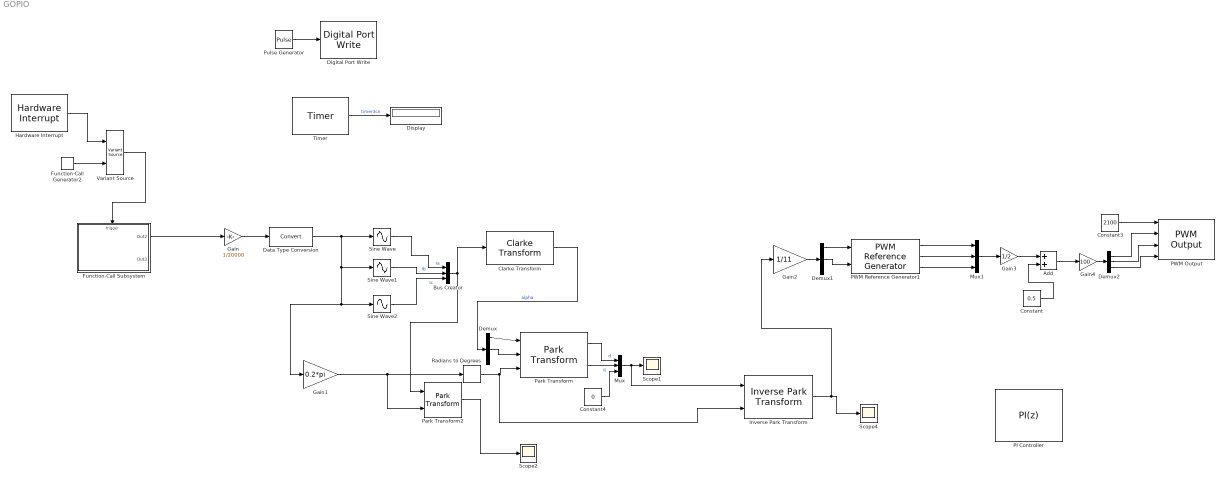
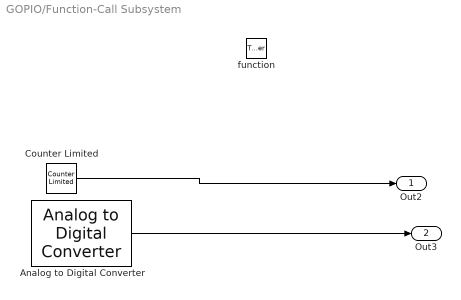
/*
 * File: GOPIO.c
 *
 * Code generated for Simulink model 'GOPIO'.
 *
 * Model version                  : 1.19
 * Simulink Coder version         : 24.1 (R2024a) 19-Nov-2023
 * C/C++ source code generated on : Fri Sep 27 23:32:46 2024
 *
 * Target selection: ert.tlc
 * Embedded hardware selection: ARM Compatible->ARM Cortex-M
 * Code generation objectives: Unspecified
 * Validation result: Not run
 */

#include "GOPIO.h"
#include "rtwtypes.h"
#include "GOPIO_types.h"
#include "GOPIO_private.h"
#include <math.h>
#include "rt_nonfinite.h"
#include "stm_adc_ll.h"
#include <stddef.h>
#include "stm_timer_ll.h"
#include "xcp.h"
#include "ext_mode.h"

extmodeSimulationTime_T currentTime = (extmodeSimulationTime_T) 0;

/* Block signals (default storage) */
B_GOPIO_T GOPIO_B;

/* Block states (default storage) */
DW_GOPIO_T GOPIO_DW;

/* Real-time model */
static RT_MODEL_GOPIO_T GOPIO_M_;
RT_MODEL_GOPIO_T *const GOPIO_M = &GOPIO_M_;

/* Forward declaration for local functions */
static void GOPIO_SystemCore_setup(stm32cube_blocks_AnalogInput__T *obj);

/* Forward declaration for local functions */
static void GOPIO_PWMOutput_setupImpl(stm32cube_blocks_PWMOutput_GO_T *obj);
static void GOPIO_SystemCore_setup_b(stm32cube_blocks_TimerBlock_G_T *obj);
static void GOPIO_SystemCore_setup(stm32cube_blocks_AnalogInput__T *obj)
{
  ADC_Type_T adcStructLoc;
  obj->isSetupComplete = false;

  /* Start for MATLABSystem: '<S18>/Analog to Digital Converter' */
  obj->isInitialized = 1;
  adcStructLoc.InternalBufferPtr = (void *)(NULL);

  /* Start for MATLABSystem: '<S18>/Analog to Digital Converter' */
  adcStructLoc.RegularNoOfConversion = 0U;
  adcStructLoc.peripheralPtr = ADC1;
  adcStructLoc.dmaPeripheralPtr = NULL;
  adcStructLoc.dmastream = 0;
  adcStructLoc.DataTransferMode = ADC_DR_TRANSFER;
  adcStructLoc.DmaTransferMode = ADC_DMA_TRANSFER_LIMITED;
  adcStructLoc.InternalBufferSize = 2U;
  adcStructLoc.InjectedNoOfConversion = 2U;
  obj->ADCHandle = ADC_Handle_Init(&adcStructLoc, ADC_INTERRUPT_MODE, 0,
    ADC_READ, LL_ADC_INJ_SEQ_SCAN_ENABLE_2RANKS);
  enableADC(obj->ADCHandle);
  startADCConversionForExternalTrigger(obj->ADCHandle, 0);
  obj->isSetupComplete = true;
}

/*
 * Output and update for action system:
 *    '<S26>/If Action Subsystem'
 *    '<S97>/If Action Subsystem'
 */
void GOPIO_IfActionSubsystem(real_T rtu_In1, real_T *rty_Out1)
{
  real_T tmp;

  /* DataTypeConversion: '<S28>/Convert_uint16' */
  tmp = floor(rtu_In1);
  if (rtIsNaN(tmp) || rtIsInf(tmp)) {
    tmp = 0.0;
  } else {
    tmp = fmod(tmp, 65536.0);
  }

  /* Sum: '<S28>/Sum' incorporates:
   *  DataTypeConversion: '<S28>/Convert_back'
   *  DataTypeConversion: '<S28>/Convert_uint16'
   */
  *rty_Out1 = rtu_In1 - (real_T)(tmp < 0.0 ? (int32_T)(int16_T)-(int16_T)
    (uint16_T)-tmp : (int32_T)(int16_T)(uint16_T)tmp);
}

/*
 * Output and update for action system:
 *    '<S26>/If Action Subsystem1'
 *    '<S97>/If Action Subsystem1'
 */
void GOPIO_IfActionSubsystem1(real_T rtu_In1, real_T *rty_Out1)
{
  real_T tmp;

  /* DataTypeConversion: '<S29>/Convert_uint16' */
  tmp = trunc(rtu_In1);
  if (rtIsNaN(tmp) || rtIsInf(tmp)) {
    tmp = 0.0;
  } else {
    tmp = fmod(tmp, 65536.0);
  }

  /* Sum: '<S29>/Sum' incorporates:
   *  DataTypeConversion: '<S29>/Convert_back'
   *  DataTypeConversion: '<S29>/Convert_uint16'
   */
  *rty_Out1 = rtu_In1 - (real_T)(tmp < 0.0 ? (int32_T)(int16_T)-(int16_T)
    (uint16_T)-tmp : (int32_T)(int16_T)(uint16_T)tmp);
}

real_T rt_roundd_snf(real_T u)
{
  real_T y;
  if (fabs(u) < 4.503599627370496E+15) {
    if (u >= 0.5) {
      y = floor(u + 0.5);
    } else if (u > -0.5) {
      y = u * 0.0;
    } else {
      y = ceil(u - 0.5);
    }
  } else {
    y = u;
  }

  return y;
}

static void GOPIO_PWMOutput_setupImpl(stm32cube_blocks_PWMOutput_GO_T *obj)
{
  TIM_Type_T b;
  boolean_T isSlaveModeTriggerEnabled;

  /* Start for MATLABSystem: '<S85>/PWM Output' */
  b.PeripheralPtr = TIM1;
  b.isCenterAlignedMode = false;

  /* Start for MATLABSystem: '<S85>/PWM Output' */
  b.repetitionCounter = 0U;
  obj->TimerHandle = Timer_Handle_Init(&b);
  enableTimerInterrupts(obj->TimerHandle, 0);
  enableTimerChannel1(obj->TimerHandle, ENABLE_CH_CHN);
  enableTimerChannel2(obj->TimerHandle, ENABLE_CH_CHN);
  enableTimerChannel3(obj->TimerHandle, ENABLE_CH_CHN);
  isSlaveModeTriggerEnabled = isSlaveTriggerModeEnabled(obj->TimerHandle);
  if (!isSlaveModeTriggerEnabled) {
    /* Start for MATLABSystem: '<S85>/PWM Output' */
    enableCounter(obj->TimerHandle, true);
  }
}

static void GOPIO_SystemCore_setup_b(stm32cube_blocks_TimerBlock_G_T *obj)
{
  TIM_Type_T b;
  boolean_T isSlaveModeTriggerEnabled;

  /* Start for MATLABSystem: '<Root>/Timer' */
  obj->isInitialized = 1;
  b.PeripheralPtr = TIM3;
  b.isCenterAlignedMode = false;

  /* Start for MATLABSystem: '<Root>/Timer' */
  b.repetitionCounter = 0U;
  obj->TimerHandle = Timer_Handle_Init(&b);
  enableTimerInterrupts(obj->TimerHandle, 0);
  isSlaveModeTriggerEnabled = isSlaveTriggerModeEnabled(obj->TimerHandle);
  if (!isSlaveModeTriggerEnabled) {
    /* Start for MATLABSystem: '<Root>/Timer' */
    enableCounter(obj->TimerHandle, false);
  }

  obj->isSetupComplete = true;
}

/* Model step function */
void GOPIO_step(void)
{
  real_T rtb_Add1;
  real_T rtb_Min;
  real_T rtb_Sum4;
  real_T rtb_Sum6_tmp;
  real_T rtb_convert_pu;
  int32_T c;
  uint32_T rtb_TmpRTBAtGainInport1;
  uint16_T rtb_Get_Integer;
  uint16_T rtb_Get_Integer_n;

  /* Reset subsysRan breadcrumbs */
  srClearBC(GOPIO_DW.IfActionSubsystem.IfActionSubsystem_SubsysRanBC);

  /* Reset subsysRan breadcrumbs */
  srClearBC(GOPIO_DW.IfActionSubsystem1.IfActionSubsystem1_SubsysRanBC);

  /* RateTransition generated from: '<Root>/Gain' */
  rtb_TmpRTBAtGainInport1 = GOPIO_B.Output;

  /* DataTypeConversion: '<Root>/Data Type Conversion' incorporates:
   *  Gain: '<Root>/Gain'
   */
  rtb_Sum4 = (real_T)((uint64_T)GOPIO_P.Gain_Gain_o * rtb_TmpRTBAtGainInport1) *
    1.4210854715202004E-14;

  /* Gain: '<Root>/Gain1' incorporates:
   *  DataTypeConversion: '<Root>/Data Type Conversion'
   */
  GOPIO_B.Gain1_m = rtb_Sum4 * GOPIO_P.Gain1_Gain;

  /* Gain: '<S11>/Gain' */
  rtb_Min = GOPIO_P.Gain_Gain * GOPIO_B.Gain1_m;

  /* Gain: '<S26>/convert_pu' */
  rtb_convert_pu = GOPIO_P.convert_pu_Gain * rtb_Min;

  /* If: '<S26>/If' incorporates:
   *  Constant: '<S27>/Constant'
   *  RelationalOperator: '<S27>/Compare'
   */
  if (rtb_convert_pu < GOPIO_P.Constant_Value) {
    /* Outputs for IfAction SubSystem: '<S26>/If Action Subsystem' incorporates:
     *  ActionPort: '<S28>/Action Port'
     */
    GOPIO_IfActionSubsystem(rtb_convert_pu, &rtb_Add1);

    /* End of Outputs for SubSystem: '<S26>/If Action Subsystem' */
  } else {
    /* Outputs for IfAction SubSystem: '<S26>/If Action Subsystem1' incorporates:
     *  ActionPort: '<S29>/Action Port'
     */
    GOPIO_IfActionSubsystem1(rtb_convert_pu, &rtb_Add1);

    /* End of Outputs for SubSystem: '<S26>/If Action Subsystem1' */
  }

  /* End of If: '<S26>/If' */

  /* Gain: '<S23>/indexing' */
  rtb_Add1 *= GOPIO_P.indexing_Gain;

  /* DataTypeConversion: '<S23>/Get_Integer' */
  rtb_convert_pu = trunc(rtb_Add1);
  if (rtIsNaN(rtb_convert_pu) || rtIsInf(rtb_convert_pu)) {
    rtb_convert_pu = 0.0;
  } else {
    rtb_convert_pu = fmod(rtb_convert_pu, 65536.0);
  }

  rtb_Get_Integer = (uint16_T)(rtb_convert_pu < 0.0 ? (int32_T)(uint16_T)
    -(int16_T)(uint16_T)-rtb_convert_pu : (int32_T)(uint16_T)rtb_convert_pu);

  /* End of DataTypeConversion: '<S23>/Get_Integer' */

  /* Gain: '<S97>/convert_pu' */
  rtb_convert_pu = GOPIO_P.convert_pu_Gain_n * rtb_Min;

  /* If: '<S97>/If' incorporates:
   *  Constant: '<S98>/Constant'
   *  RelationalOperator: '<S98>/Compare'
   */
  if (rtb_convert_pu < GOPIO_P.Constant_Value_d) {
    /* Outputs for IfAction SubSystem: '<S97>/If Action Subsystem' incorporates:
     *  ActionPort: '<S99>/Action Port'
     */
    GOPIO_IfActionSubsystem(rtb_convert_pu, &rtb_Min);

    /* End of Outputs for SubSystem: '<S97>/If Action Subsystem' */
  } else {
    /* Outputs for IfAction SubSystem: '<S97>/If Action Subsystem1' incorporates:
     *  ActionPort: '<S100>/Action Port'
     */
    GOPIO_IfActionSubsystem1(rtb_convert_pu, &rtb_Min);

    /* End of Outputs for SubSystem: '<S97>/If Action Subsystem1' */
  }

  /* End of If: '<S97>/If' */

  /* Gain: '<S95>/indexing' */
  rtb_Min *= GOPIO_P.indexing_Gain_c;

  /* DataTypeConversion: '<S95>/Get_Integer' */
  rtb_convert_pu = trunc(rtb_Min);
  if (rtIsNaN(rtb_convert_pu) || rtIsInf(rtb_convert_pu)) {
    rtb_convert_pu = 0.0;
  } else {
    rtb_convert_pu = fmod(rtb_convert_pu, 65536.0);
  }

  rtb_Get_Integer_n = (uint16_T)(rtb_convert_pu < 0.0 ? (int32_T)(uint16_T)
    -(int16_T)(uint16_T)-rtb_convert_pu : (int32_T)(uint16_T)rtb_convert_pu);

  /* End of DataTypeConversion: '<S95>/Get_Integer' */

  /* Sin: '<Root>/Sine Wave' */
  GOPIO_B.Ia = sin(rtb_Sum4 * GOPIO_P.SineWave_Freq + GOPIO_P.SineWave_Phase) *
    GOPIO_P.SineWave_Amp + GOPIO_P.SineWave_Bias;

  /* Sin: '<Root>/Sine Wave1' */
  GOPIO_B.Ib = sin(rtb_Sum4 * GOPIO_P.SineWave1_Freq + GOPIO_P.SineWave1_Phase) *
    GOPIO_P.SineWave1_Amp + GOPIO_P.SineWave1_Bias;

  /* Sin: '<Root>/Sine Wave2' */
  GOPIO_B.Ic = sin(rtb_Sum4 * GOPIO_P.SineWave2_Freq + GOPIO_P.SineWave2_Phase) *
    GOPIO_P.SineWave2_Amp + GOPIO_P.SineWave2_Bias;

  /* Gain: '<S10>/Gain1' incorporates:
   *  Fcn: '<S10>/d'
   *  Fcn: '<S10>/q'
   */
  GOPIO_B.Gain1[0] = ((sin(GOPIO_B.Gain1_m - 2.0943951023931953) * GOPIO_B.Ib +
                       sin(GOPIO_B.Gain1_m) * GOPIO_B.Ia) + sin(GOPIO_B.Gain1_m
    + 2.0943951023931953) * GOPIO_B.Ic) * GOPIO_P.Gain1_Gain_o;
  GOPIO_B.Gain1[1] = ((cos(GOPIO_B.Gain1_m - 2.0943951023931953) * GOPIO_B.Ib +
                       cos(GOPIO_B.Gain1_m) * GOPIO_B.Ia) + cos(GOPIO_B.Gain1_m
    + 2.0943951023931953) * GOPIO_B.Ic) * GOPIO_P.Gain1_Gain_o;

  /* Fcn: '<S10>/0' incorporates:
   *  Sum: '<S12>/Sum'
   */
  rtb_convert_pu = (GOPIO_B.Ia + GOPIO_B.Ib) + GOPIO_B.Ic;

  /* Gain: '<S10>/Gain1' incorporates:
   *  Fcn: '<S10>/0'
   */
  GOPIO_B.Gain1[2] = rtb_convert_pu * 0.5 * GOPIO_P.Gain1_Gain_o;

  /* Gain: '<S12>/Kalphabeta0' incorporates:
   *  Gain: '<S12>/one_by_3'
   *  Gain: '<S12>/one_by_sqrt3_'
   *  Sum: '<S12>/Sum1'
   *  Sum: '<S12>/Sum2'
   */
  rtb_convert_pu = (GOPIO_B.Ia - rtb_convert_pu * GOPIO_P.one_by_3_Gain) *
    GOPIO_P.Kalphabeta0_Gain[0];
  GOPIO_B.Gain1_m = (GOPIO_B.Ib - GOPIO_B.Ic) * GOPIO_P.one_by_sqrt3_Gain *
    GOPIO_P.Kalphabeta0_Gain[1];

  /* Sum: '<S95>/Sum2' incorporates:
   *  DataTypeConversion: '<S95>/Data Type Conversion1'
   */
  rtb_Min -= (real_T)rtb_Get_Integer_n;

  /* Selector: '<S95>/Lookup' incorporates:
   *  Constant: '<S95>/offset'
   *  Constant: '<S95>/sine_table_values'
   *  Sum: '<S95>/Sum'
   *  Sum: '<S96>/Sum3'
   */
  rtb_Sum4 = GOPIO_P.sine_table_values_Value[(int32_T)((uint32_T)
    GOPIO_P.offset_Value_h[1] + rtb_Get_Integer_n)];

  /* Sum: '<S96>/Sum4' incorporates:
   *  Constant: '<S95>/offset'
   *  Constant: '<S95>/sine_table_values'
   *  Product: '<S96>/Product'
   *  Selector: '<S95>/Lookup'
   *  Sum: '<S95>/Sum'
   *  Sum: '<S96>/Sum3'
   */
  rtb_Sum4 += (GOPIO_P.sine_table_values_Value[(int32_T)((uint32_T)
    GOPIO_P.offset_Value_h[0] + rtb_Get_Integer_n)] - rtb_Sum4) * rtb_Min;

  /* Selector: '<S95>/Lookup' incorporates:
   *  Constant: '<S95>/offset'
   *  Constant: '<S95>/sine_table_values'
   *  Sum: '<S95>/Sum'
   *  Sum: '<S96>/Sum5'
   */
  rtb_Sum6_tmp = GOPIO_P.sine_table_values_Value[(int32_T)((uint32_T)
    GOPIO_P.offset_Value_h[3] + rtb_Get_Integer_n)];

  /* Sum: '<S96>/Sum6' incorporates:
   *  Constant: '<S95>/offset'
   *  Constant: '<S95>/sine_table_values'
   *  Product: '<S96>/Product1'
   *  Selector: '<S95>/Lookup'
   *  Sum: '<S95>/Sum'
   *  Sum: '<S96>/Sum5'
   */
  rtb_Min = (GOPIO_P.sine_table_values_Value[(int32_T)((uint32_T)
              GOPIO_P.offset_Value_h[2] + rtb_Get_Integer_n)] - rtb_Sum6_tmp) *
    rtb_Min + rtb_Sum6_tmp;

  /* Outputs for Atomic SubSystem: '<S9>/Two inputs CRL' */
  /* Switch: '<S101>/Switch' incorporates:
   *  Constant: '<S101>/Offset'
   */
  if (GOPIO_P.Offset_Value_i > GOPIO_P.Switch_Threshold_i) {
    /* AlgorithmDescriptorDelegate generated from: '<S94>/a16' incorporates:
     *  Product: '<S94>/asin'
     *  Product: '<S94>/bcos'
     *  Sum: '<S94>/sum_Qs'
     *  UnaryMinus: '<S101>/Unary_Minus'
     */
    GOPIO_B.algDD_o1 = -(GOPIO_B.Gain1_m * rtb_Min - rtb_convert_pu * rtb_Sum4);

    /* AlgorithmDescriptorDelegate generated from: '<S94>/a16' incorporates:
     *  Product: '<S94>/acos'
     *  Product: '<S94>/bsin'
     *  Sum: '<S94>/sum_Ds'
     */
    GOPIO_B.algDD_o2 = rtb_convert_pu * rtb_Min + GOPIO_B.Gain1_m * rtb_Sum4;
  } else {
    /* AlgorithmDescriptorDelegate generated from: '<S94>/a16' incorporates:
     *  Product: '<S94>/acos'
     *  Product: '<S94>/bsin'
     *  Sum: '<S94>/sum_Ds'
     */
    GOPIO_B.algDD_o1 = rtb_convert_pu * rtb_Min + GOPIO_B.Gain1_m * rtb_Sum4;

    /* AlgorithmDescriptorDelegate generated from: '<S94>/a16' incorporates:
     *  Product: '<S94>/asin'
     *  Product: '<S94>/bcos'
     *  Sum: '<S94>/sum_Qs'
     */
    GOPIO_B.algDD_o2 = GOPIO_B.Gain1_m * rtb_Min - rtb_convert_pu * rtb_Sum4;
  }

  /* End of Switch: '<S101>/Switch' */
  /* End of Outputs for SubSystem: '<S9>/Two inputs CRL' */

  /* Constant: '<Root>/Constant4' */
  GOPIO_B.Constant4 = GOPIO_P.Constant4_Value;

  /* SignalConversion generated from: '<Root>/Mux' */
  GOPIO_B.TmpSignalConversionAtTAQSigLogg[0] = GOPIO_B.algDD_o1;
  GOPIO_B.TmpSignalConversionAtTAQSigLogg[1] = GOPIO_B.algDD_o2;
  GOPIO_B.TmpSignalConversionAtTAQSigLogg[2] = GOPIO_B.Constant4;

  /* Sum: '<S23>/Sum2' incorporates:
   *  DataTypeConversion: '<S23>/Data Type Conversion1'
   */
  rtb_Min = rtb_Add1 - (real_T)rtb_Get_Integer;

  /* Selector: '<S23>/Lookup' incorporates:
   *  Constant: '<S23>/offset'
   *  Constant: '<S23>/sine_table_values'
   *  Sum: '<S23>/Sum'
   *  Sum: '<S25>/Sum3'
   */
  rtb_Add1 = GOPIO_P.sine_table_values_Value_b[(int32_T)((uint32_T)
    GOPIO_P.offset_Value[1] + rtb_Get_Integer)];

  /* Sum: '<S25>/Sum4' incorporates:
   *  Constant: '<S23>/offset'
   *  Constant: '<S23>/sine_table_values'
   *  Product: '<S25>/Product'
   *  Selector: '<S23>/Lookup'
   *  Sum: '<S23>/Sum'
   *  Sum: '<S25>/Sum3'
   */
  rtb_Add1 += (GOPIO_P.sine_table_values_Value_b[(int32_T)((uint32_T)
    GOPIO_P.offset_Value[0] + rtb_Get_Integer)] - rtb_Add1) * rtb_Min;

  /* Selector: '<S23>/Lookup' incorporates:
   *  Constant: '<S23>/offset'
   *  Constant: '<S23>/sine_table_values'
   *  Sum: '<S23>/Sum'
   *  Sum: '<S25>/Sum5'
   */
  rtb_convert_pu = GOPIO_P.sine_table_values_Value_b[(int32_T)((uint32_T)
    GOPIO_P.offset_Value[3] + rtb_Get_Integer)];

  /* Sum: '<S25>/Sum6' incorporates:
   *  Constant: '<S23>/offset'
   *  Constant: '<S23>/sine_table_values'
   *  Product: '<S25>/Product1'
   *  Selector: '<S23>/Lookup'
   *  Sum: '<S23>/Sum'
   *  Sum: '<S25>/Sum5'
   */
  rtb_Min = (GOPIO_P.sine_table_values_Value_b[(int32_T)((uint32_T)
              GOPIO_P.offset_Value[2] + rtb_Get_Integer)] - rtb_convert_pu) *
    rtb_Min + rtb_convert_pu;

  /* Outputs for Atomic SubSystem: '<S24>/Two inputs CRL' */
  /* Switch: '<S31>/Switch' incorporates:
   *  Constant: '<S31>/Offset'
   */
  if (GOPIO_P.Offset_Value > GOPIO_P.Switch_Threshold) {
    /* AlgorithmDescriptorDelegate generated from: '<S30>/a16' incorporates:
     *  Product: '<S30>/dsin'
     *  Product: '<S30>/qcos'
     *  Sum: '<S30>/sum_beta'
     */
    GOPIO_B.algDD_o1_p = GOPIO_B.algDD_o2 * rtb_Min + GOPIO_B.algDD_o1 *
      rtb_Add1;

    /* AlgorithmDescriptorDelegate generated from: '<S30>/a16' incorporates:
     *  Product: '<S30>/dcos'
     *  Product: '<S30>/qsin'
     *  Sum: '<S30>/sum_alpha'
     *  UnaryMinus: '<S31>/Unary_Minus'
     */
    GOPIO_B.algDD_o2_f = -(GOPIO_B.algDD_o1 * rtb_Min - GOPIO_B.algDD_o2 *
      rtb_Add1);
  } else {
    /* AlgorithmDescriptorDelegate generated from: '<S30>/a16' incorporates:
     *  Product: '<S30>/dcos'
     *  Product: '<S30>/qsin'
     *  Sum: '<S30>/sum_alpha'
     */
    GOPIO_B.algDD_o1_p = GOPIO_B.algDD_o1 * rtb_Min - GOPIO_B.algDD_o2 *
      rtb_Add1;

    /* AlgorithmDescriptorDelegate generated from: '<S30>/a16' incorporates:
     *  Product: '<S30>/dsin'
     *  Product: '<S30>/qcos'
     *  Sum: '<S30>/sum_beta'
     */
    GOPIO_B.algDD_o2_f = GOPIO_B.algDD_o2 * rtb_Min + GOPIO_B.algDD_o1 *
      rtb_Add1;
  }

  /* End of Switch: '<S31>/Switch' */
  /* End of Outputs for SubSystem: '<S24>/Two inputs CRL' */

  /* SignalConversion generated from: '<Root>/Inverse Park Transform' */
  GOPIO_B.TmpSignalConversionAtTAQSigLo_g[0] = GOPIO_B.algDD_o1_p;
  GOPIO_B.TmpSignalConversionAtTAQSigLo_g[1] = GOPIO_B.algDD_o2_f;
  GOPIO_B.TmpSignalConversionAtTAQSigLo_g[2] = GOPIO_B.Constant4;

  /* Gain: '<Root>/Gain2' */
  rtb_convert_pu = GOPIO_P.Gain2_Gain * GOPIO_B.TmpSignalConversionAtTAQSigLo_g
    [0];

  /* Gain: '<S92>/Ka' */
  GOPIO_B.Gain1_m = GOPIO_P.Ka_Gain * rtb_convert_pu;

  /* Gain: '<S92>/one_by_two' */
  rtb_Min = GOPIO_P.one_by_two_Gain * rtb_convert_pu;

  /* Gain: '<S92>/sqrt3_by_two' incorporates:
   *  Gain: '<Root>/Gain2'
   */
  rtb_convert_pu = GOPIO_P.Gain2_Gain * GOPIO_B.TmpSignalConversionAtTAQSigLo_g
    [1] * GOPIO_P.sqrt3_by_two_Gain;

  /* Gain: '<S92>/Kb' incorporates:
   *  Sum: '<S92>/add_b'
   */
  rtb_Add1 = (rtb_convert_pu - rtb_Min) * GOPIO_P.Kb_Gain;

  /* Gain: '<S92>/Kc' incorporates:
   *  Sum: '<S92>/add_c'
   */
  rtb_Min = ((0.0 - rtb_Min) - rtb_convert_pu) * GOPIO_P.Kc_Gain;

  /* Gain: '<S89>/one_by_two' incorporates:
   *  MinMax: '<S89>/Max'
   *  MinMax: '<S89>/Min'
   *  Sum: '<S89>/Add'
   */
  rtb_convert_pu = (fmax(fmax(GOPIO_B.Gain1_m, rtb_Add1), rtb_Min) + fmin(fmin
    (GOPIO_B.Gain1_m, rtb_Add1), rtb_Min)) * GOPIO_P.one_by_two_Gain_d;

  /* Gain: '<Root>/Gain4' incorporates:
   *  Constant: '<Root>/Constant'
   *  Gain: '<Root>/Gain3'
   *  Gain: '<S88>/Gain'
   *  Sum: '<Root>/Add'
   *  Sum: '<S88>/Add1'
   *  Sum: '<S88>/Add2'
   *  Sum: '<S88>/Add3'
   */
  GOPIO_B.Gain4[0] = ((GOPIO_B.Gain1_m + rtb_convert_pu) * GOPIO_P.Gain_Gain_m *
                      GOPIO_P.Gain3_Gain + GOPIO_P.Constant_Value_p) *
    GOPIO_P.Gain4_Gain;
  GOPIO_B.Gain4[1] = ((rtb_Add1 + rtb_convert_pu) * GOPIO_P.Gain_Gain_m *
                      GOPIO_P.Gain3_Gain + GOPIO_P.Constant_Value_p) *
    GOPIO_P.Gain4_Gain;
  GOPIO_B.Gain4[2] = ((rtb_convert_pu + rtb_Min) * GOPIO_P.Gain_Gain_m *
                      GOPIO_P.Gain3_Gain + GOPIO_P.Constant_Value_p) *
    GOPIO_P.Gain4_Gain;

  /* MATLABSystem: '<S85>/PWM Output' incorporates:
   *  Constant: '<Root>/Constant3'
   */
  rtb_convert_pu = rt_roundd_snf(GOPIO_P.Constant3_Value);
  if (rtb_convert_pu < 4.294967296E+9) {
    if (rtb_convert_pu >= 0.0) {
      rtb_TmpRTBAtGainInport1 = (uint32_T)rtb_convert_pu;
    } else {
      rtb_TmpRTBAtGainInport1 = 0U;
    }
  } else {
    rtb_TmpRTBAtGainInport1 = MAX_uint32_T;
  }

  rtb_TmpRTBAtGainInport1 = checkFrequencyAndDutyCycleLimits
    (GOPIO_DW.obj_e.TimerHandle, rtb_TmpRTBAtGainInport1);
  setFrequencyAccToInput(GOPIO_DW.obj_e.TimerHandle, rtb_TmpRTBAtGainInport1);
  setDutyCycleInPercentageChannel1(GOPIO_DW.obj_e.TimerHandle, GOPIO_B.Gain4[0]);
  setDutyCycleInPercentageChannel2(GOPIO_DW.obj_e.TimerHandle, GOPIO_B.Gain4[1]);
  setDutyCycleInPercentageChannel3(GOPIO_DW.obj_e.TimerHandle, GOPIO_B.Gain4[2]);

  /* End of MATLABSystem: '<S85>/PWM Output' */
  /* DiscretePulseGenerator: '<Root>/Pulse Generator' */
  rtb_Add1 = (GOPIO_DW.clockTickCounter < GOPIO_P.PulseGenerator_Duty) &&
    (GOPIO_DW.clockTickCounter >= 0) ? GOPIO_P.PulseGenerator_Amp : 0.0;
  if (GOPIO_DW.clockTickCounter >= GOPIO_P.PulseGenerator_Period - 1.0) {
    GOPIO_DW.clockTickCounter = 0;
  } else {
    GOPIO_DW.clockTickCounter++;
  }

  /* End of DiscretePulseGenerator: '<Root>/Pulse Generator' */

  /* MATLABSystem: '<S14>/Digital Port Write' */
  GOPIO_B.portNameLoc = GPIOA;
  if (rtb_Add1 != 0.0) {
    c = 32;
  } else {
    c = 0;
  }

  LL_GPIO_SetOutputPin(GOPIO_B.portNameLoc, (uint32_T)c);
  LL_GPIO_ResetOutputPin(GOPIO_B.portNameLoc, ~(uint32_T)c & 32U);

  /* End of MATLABSystem: '<S14>/Digital Port Write' */

  /* MATLABSystem: '<Root>/Timer' */
  GOPIO_B.timer3cn = getTimerCounterValue(GOPIO_DW.obj_j.TimerHandle);

  /* Update absolute time for base rate */
  /* The "clockTick0" counts the number of times the code of this task has
   * been executed. The absolute time is the multiplication of "clockTick0"
   * and "Timing.stepSize0". Size of "clockTick0" ensures timer will not
   * overflow during the application lifespan selected.
   */
  GOPIO_M->Timing.taskTime0 =
    ((time_T)(++GOPIO_M->Timing.clockTick0)) * GOPIO_M->Timing.stepSize0;
}
